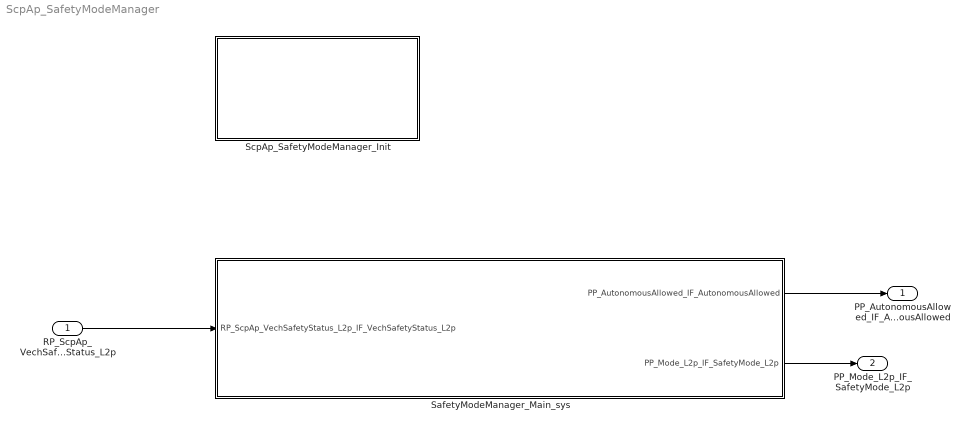
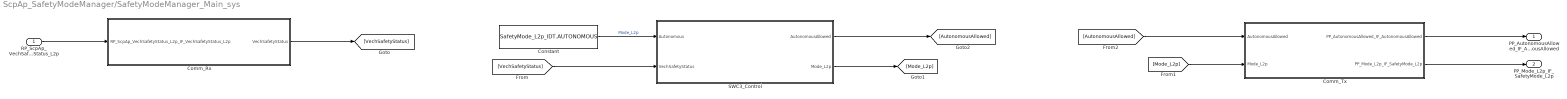
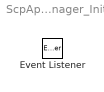
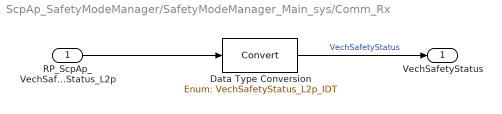
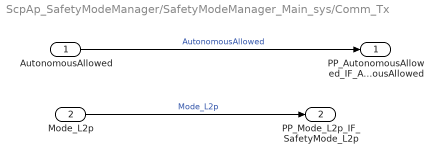
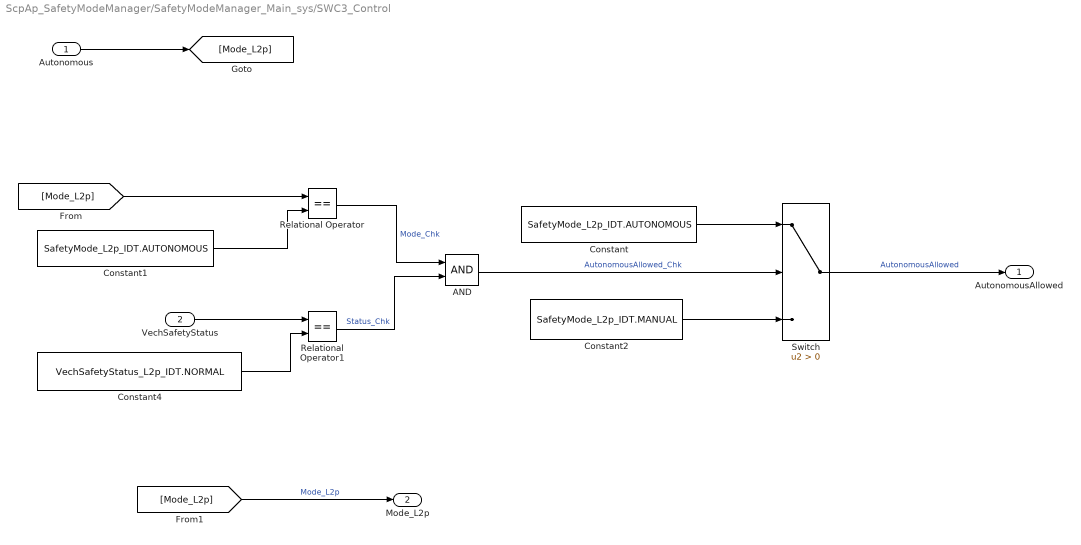
/*
 * Academic License - for use in teaching, academic research, and meeting
 * course requirements at degree granting institutions only.  Not for
 * government, commercial, or other organizational use.
 *
 * File: ScpAp_SafetyModeManager.c
 *
 * Code generated for Simulink model 'ScpAp_SafetyModeManager'.
 *
 * Model version                  : 1.65
 * Simulink Coder version         : 25.2 (R2025b) 28-Jul-2025
 * C/C++ source code generated on : Tue Feb 10 15:43:49 2026
 *
 * Target selection: autosar.tlc
 * Embedded hardware selection: Intel->x86-64 (Windows64)
 * Code generation objectives: Unspecified
 * Validation result: Not run
 */

#include "ScpAp_SafetyModeManager.h"
#include "Platform_Types.h"
#include "Rte_Type.h"

/* PublicStructure Variables for Internal Data */
ARID_DEF_ScpAp_SafetyModeMana_T ScpAp_SafetyModeManage_ARID_DEF;
              /* '<S3>/RP_ScpAp_VechSafetyStatus_L2p_IF_VechSafetyStatus_L2p' */

/* Static Memory for Internal Data */

/* SwAddrMethod AswVariable for Internal Data */
#define ScpAp_SafetyModeManager_START_SEC_AswVariable
#include "ScpAp_SafetyModeManager_MemMap.h"

SafetyMode_L2p_IDT ScpAp_SafetyM_AutonomousAllowed;/* '<S5>/Switch' */
SafetyMode_L2p_IDT ScpAp_SafetyModeManage_Mode_L2p;/* '<S5>/Autonomous' */
boolean ScpAp_SafetyModeMana_Status_Chk;/* '<S5>/Relational Operator1' */
boolean ScpAp_SafetyModeManage_Mode_Chk;/* '<S5>/Relational Operator' */

#define ScpAp_SafetyModeManager_STOP_SEC_AswVariable
#include "ScpAp_SafetyModeManager_MemMap.h"

/* Model step function */

/* SwAddrMethod CODE for Runnable */
#define ScpAp_SafetyModeManager_START_SEC_CODE
#include "ScpAp_SafetyModeManager_MemMap.h"

void SafetyModeManager_Main(void)
{
  /* SignalConversion generated from: '<S3>/RP_ScpAp_VechSafetyStatus_L2p_IF_VechSafetyStatus_L2p' incorporates:
   *  Inport: '<Root>/RP_ScpAp_VechSafetyStatus_L2p_IF_VechSafetyStatus_L2p'
   */
  (void)Rte_Read_RP_ScpAp_VechSafetyStatus_L2p_IF_VechSafetyStatus_L2p
    (&ScpAp_SafetyModeManage_ARID_DEF.VechSafetyStatus);

  /* Outputs for Atomic SubSystem: '<Root>/SafetyModeManager_Main_sys' */
  /* Outputs for Atomic SubSystem: '<S1>/SWC3_Control' */
  /* RelationalOperator: '<S5>/Relational Operator1' incorporates:
   *  Constant: '<S5>/Constant4'
   *  SignalConversion generated from: '<S3>/RP_ScpAp_VechSafetyStatus_L2p_IF_VechSafetyStatus_L2p'
   */
  ScpAp_SafetyModeMana_Status_Chk =
    (ScpAp_SafetyModeManage_ARID_DEF.VechSafetyStatus == NORMAL);

  /* Switch: '<S5>/Switch' incorporates:
   *  Logic: '<S5>/AND'
   */
  if (ScpAp_SafetyModeManage_Mode_Chk && ScpAp_SafetyModeMana_Status_Chk) {
    /* Switch: '<S5>/Switch' incorporates:
     *  Constant: '<S5>/Constant'
     */
    ScpAp_SafetyM_AutonomousAllowed = AUTONOMOUS;
  } else {
    /* Switch: '<S5>/Switch' incorporates:
     *  Constant: '<S5>/Constant2'
     */
    ScpAp_SafetyM_AutonomousAllowed = MANUAL;
  }

  /* End of Switch: '<S5>/Switch' */
  /* End of Outputs for SubSystem: '<S1>/SWC3_Control' */

  /* Outputs for Atomic SubSystem: '<S1>/Comm_Tx' */
  /* SignalConversion generated from: '<S4>/AutonomousAllowed' incorporates:
   *  Switch: '<S5>/Switch'
   */
  ScpAp_SafetyModeManage_ARID_DEF.AutonomousAllowed_d =
    ScpAp_SafetyM_AutonomousAllowed;

  /* SignalConversion generated from: '<S4>/Mode_L2p' incorporates:
   *  SignalConversion generated from: '<S5>/Autonomous'
   */
  ScpAp_SafetyModeManage_ARID_DEF.Mode_L2p_b = ScpAp_SafetyModeManage_Mode_L2p;

  /* End of Outputs for SubSystem: '<S1>/Comm_Tx' */
  /* End of Outputs for SubSystem: '<Root>/SafetyModeManager_Main_sys' */

  /* Outport: '<Root>/PP_AutonomousAllowed_IF_AutonomousAllowed' incorporates:
   *  SignalConversion generated from: '<S4>/AutonomousAllowed'
   */
  (void)Rte_Write_PP_AutonomousAllowed_IF_AutonomousAllowed
    (ScpAp_SafetyModeManage_ARID_DEF.AutonomousAllowed_d);

  /* Outport: '<Root>/PP_Mode_L2p_IF_SafetyMode_L2p' incorporates:
   *  SignalConversion generated from: '<S4>/Mode_L2p'
   */
  (void)Rte_Write_PP_Mode_L2p_IF_SafetyMode_L2p
    (ScpAp_SafetyModeManage_ARID_DEF.Mode_L2p_b);
}
